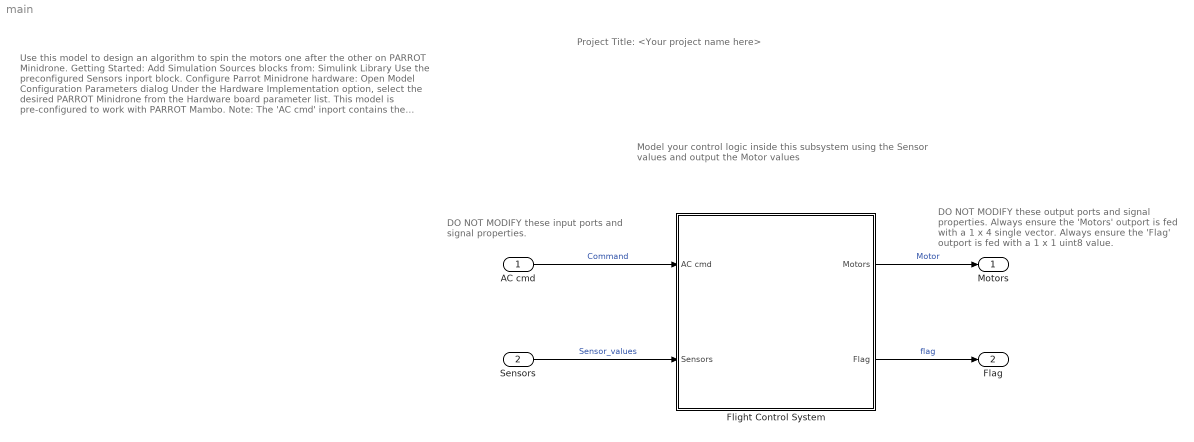
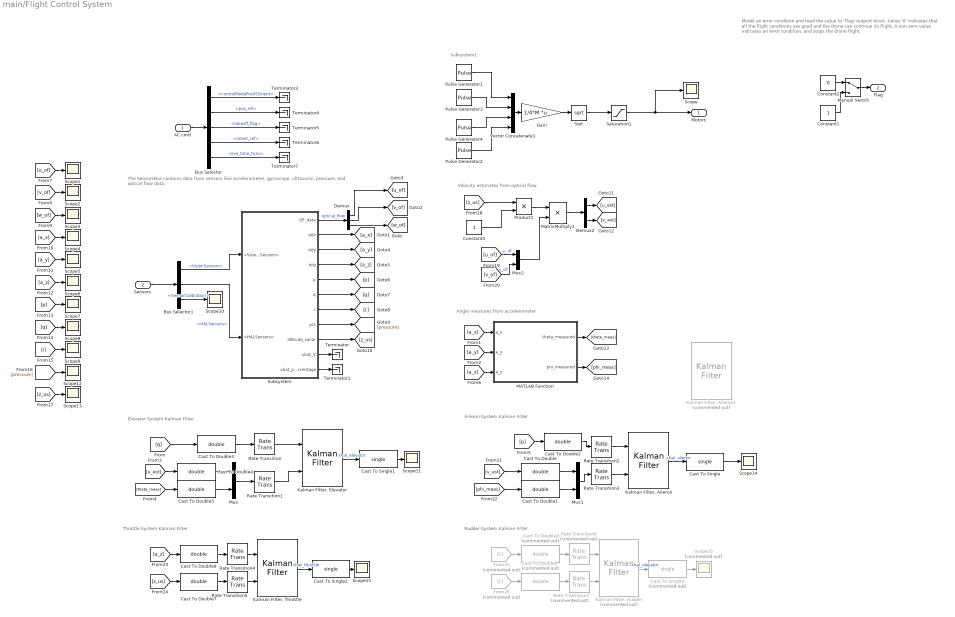
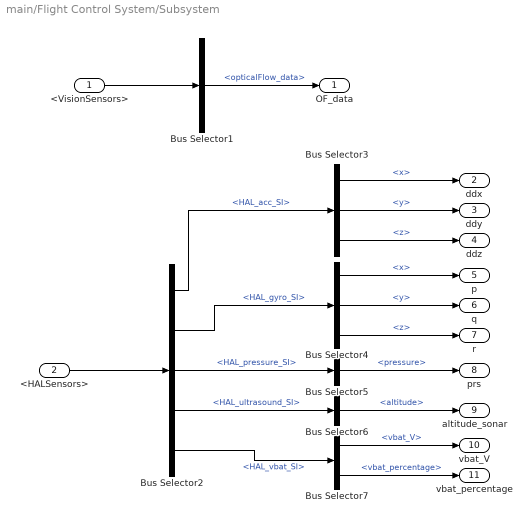
== matlab function main/Flight Control System/MATLAB Function ==
function [theta_measured,phi_measured]= fcn(a_x,a_y,a_z)
theta_measured = -a_x / sqrt(a_y^2 + a_z^2);
phi_measured = a_y/a_z;

/*
 * main.c
 *
 * Academic License - for use in teaching, academic research, and meeting
 * course requirements at degree granting institutions only.  Not for
 * government, commercial, or other organizational use.
 *
 * Code generation for model "main".
 *
 * Model version              : 1.10
 * Simulink Coder version : 9.5 (R2021a) 14-Nov-2020
 * C source code generated on : Wed Dec  1 17:09:56 2021
 *
 * Target selection: ert.tlc
 * Note: GRT includes extra infrastructure and instrumentation for prototyping
 * Embedded hardware selection: ARM Compatible->ARM 9
 * Code generation objectives: Unspecified
 * Validation result: Not run
 */

#include "main.h"
#include "main_private.h"

/* Exported block signals */
CommandBus cmd_inport;                 /* '<Root>/AC cmd' */
SensorsBus sensor_inport;              /* '<Root>/Sensors' */
real32_T motors_outport[4];            /* '<S1>/Saturation1' */
uint8_T flag_outport;                  /* '<S1>/Manual Switch' */

/* Block signals (default storage) */
B_main_T main_B;

/* Block states (default storage) */
DW_main_T main_DW;

/* External outputs (root outports fed by signals with default storage) */
ExtY_main_T main_Y;

/* Real-time model */
static RT_MODEL_main_T main_M_;
RT_MODEL_main_T *const main_M = &main_M_;

/*
 * System initialize for enable system:
 *    '<S27>/MeasurementUpdate'
 *    '<S81>/MeasurementUpdate'
 */
void main_MeasurementUpdate_Init(B_MeasurementUpdate_main_T *localB,
  P_MeasurementUpdate_main_T *localP)
{
  /* SystemInitialize for Product: '<S58>/Product3' incorporates:
   *  Outport: '<S58>/L*(y[k]-yhat[k|k-1])'
   */
  localB->Product3[0] = localP->Lykyhatkk1_Y0;
  localB->Product3[1] = localP->Lykyhatkk1_Y0;
}

/*
 * Disable for enable system:
 *    '<S27>/MeasurementUpdate'
 *    '<S81>/MeasurementUpdate'
 */
void main_MeasurementUpdate_Disable(B_MeasurementUpdate_main_T *localB,
  DW_MeasurementUpdate_main_T *localDW, P_MeasurementUpdate_main_T *localP)
{
  /* Disable for Product: '<S58>/Product3' incorporates:
   *  Outport: '<S58>/L*(y[k]-yhat[k|k-1])'
   */
  localB->Product3[0] = localP->Lykyhatkk1_Y0;
  localB->Product3[1] = localP->Lykyhatkk1_Y0;
  localDW->MeasurementUpdate_MODE = false;
}

/*
 * Start for enable system:
 *    '<S27>/MeasurementUpdate'
 *    '<S81>/MeasurementUpdate'
 */
void main_MeasurementUpdate_Start(DW_MeasurementUpdate_main_T *localDW)
{
  localDW->MeasurementUpdate_MODE = false;
}

/*
 * Output and update for enable system:
 *    '<S27>/MeasurementUpdate'
 *    '<S81>/MeasurementUpdate'
 */
void main_MeasurementUpdate(boolean_T rtu_Enable, const real_T rtu_Lk[4], real_T
  rtu_yk, real_T rtu_yk_d, const real_T rtu_Ck[4], const real_T rtu_xhatkk1[2],
  const real_T rtu_Dk[2], real_T rtu_uk, B_MeasurementUpdate_main_T *localB,
  DW_MeasurementUpdate_main_T *localDW, P_MeasurementUpdate_main_T *localP)
{
  real_T rtu_yk_idx_0;
  real_T rtu_yk_idx_1;

  /* Outputs for Enabled SubSystem: '<S27>/MeasurementUpdate' incorporates:
   *  EnablePort: '<S58>/Enable'
   */
  if (rtu_Enable) {
    localDW->MeasurementUpdate_MODE = true;

    /* Sum: '<S58>/Sum' incorporates:
     *  Product: '<S58>/C[k]*xhat[k|k-1]'
     *  Product: '<S58>/D[k]*u[k]'
     *  Sum: '<S58>/Add1'
     */
    rtu_yk_idx_0 = rtu_yk - ((rtu_Ck[0] * rtu_xhatkk1[0] + rtu_xhatkk1[1] *
      rtu_Ck[2]) + rtu_Dk[0] * rtu_uk);
    rtu_yk_idx_1 = rtu_yk_d - ((rtu_xhatkk1[0] * rtu_Ck[1] + rtu_xhatkk1[1] *
      rtu_Ck[3]) + rtu_Dk[1] * rtu_uk);

    /* Product: '<S58>/Product3' */
    localB->Product3[0] = 0.0;
    localB->Product3[0] += rtu_Lk[0] * rtu_yk_idx_0;
    localB->Product3[0] += rtu_Lk[2] * rtu_yk_idx_1;
    localB->Product3[1] = 0.0;
    localB->Product3[1] += rtu_Lk[1] * rtu_yk_idx_0;
    localB->Product3[1] += rtu_Lk[3] * rtu_yk_idx_1;
  } else if (localDW->MeasurementUpdate_MODE) {
    main_MeasurementUpdate_Disable(localB, localDW, localP);
  }

  /* End of Outputs for SubSystem: '<S27>/MeasurementUpdate' */
}

/*
 * System initialize for enable system:
 *    '<S34>/Enabled Subsystem'
 *    '<S88>/Enabled Subsystem'
 */
void main_EnabledSubsystem_Init(B_EnabledSubsystem_main_T *localB,
  P_EnabledSubsystem_main_T *localP)
{
  /* SystemInitialize for Product: '<S60>/Product2' incorporates:
   *  Outport: '<S60>/deltax'
   */
  localB->Product2[0] = localP->deltax_Y0;
  localB->Product2[1] = localP->deltax_Y0;
}

/*
 * Disable for enable system:
 *    '<S34>/Enabled Subsystem'
 *    '<S88>/Enabled Subsystem'
 */
void main_EnabledSubsystem_Disable(B_EnabledSubsystem_main_T *localB,
  DW_EnabledSubsystem_main_T *localDW, P_EnabledSubsystem_main_T *localP)
{
  /* Disable for Product: '<S60>/Product2' incorporates:
   *  Outport: '<S60>/deltax'
   */
  localB->Product2[0] = localP->deltax_Y0;
  localB->Product2[1] = localP->deltax_Y0;
  localDW->EnabledSubsystem_MODE = false;
}

/*
 * Start for enable system:
 *    '<S34>/Enabled Subsystem'
 *    '<S88>/Enabled Subsystem'
 */
void main_EnabledSubsystem_Start(DW_EnabledSubsystem_main_T *localDW)
{
  localDW->EnabledSubsystem_MODE = false;
}

/*
 * Output and update for enable system:
 *    '<S34>/Enabled Subsystem'
 *    '<S88>/Enabled Subsystem'
 */
void main_EnabledSubsystem(boolean_T rtu_Enable, const real_T rtu_Mk[4], const
  real_T rtu_Ck[4], real_T rtu_yk, real_T rtu_yk_b, const real_T rtu_xhatkk1[2],
  B_EnabledSubsystem_main_T *localB, DW_EnabledSubsystem_main_T *localDW,
  P_EnabledSubsystem_main_T *localP)
{
  real_T rtu_yk_idx_0;
  real_T rtu_yk_idx_1;

  /* Outputs for Enabled SubSystem: '<S34>/Enabled Subsystem' incorporates:
   *  EnablePort: '<S60>/Enable'
   */
  if (rtu_Enable) {
    localDW->EnabledSubsystem_MODE = true;

    /* Sum: '<S60>/Add1' incorporates:
     *  Product: '<S60>/Product'
     */
    rtu_yk_idx_0 = rtu_yk - (rtu_Ck[0] * rtu_xhatkk1[0] + rtu_xhatkk1[1] *
      rtu_Ck[2]);
    rtu_yk_idx_1 = rtu_yk_b - (rtu_xhatkk1[0] * rtu_Ck[1] + rtu_xhatkk1[1] *
      rtu_Ck[3]);

    /* Product: '<S60>/Product2' */
    localB->Product2[0] = 0.0;
    localB->Product2[0] += rtu_Mk[0] * rtu_yk_idx_0;
    localB->Product2[0] += rtu_Mk[2] * rtu_yk_idx_1;
    localB->Product2[1] = 0.0;
    localB->Product2[1] += rtu_Mk[1] * rtu_yk_idx_0;
    localB->Product2[1] += rtu_Mk[3] * rtu_yk_idx_1;
  } else if (localDW->EnabledSubsystem_MODE) {
    main_EnabledSubsystem_Disable(localB, localDW, localP);
  }

  /* End of Outputs for SubSystem: '<S34>/Enabled Subsystem' */
}

/* Model step function */
void main_step(void)
{
  real_T rtb_VectorConcatenate1_idx_3;
  real_T u0;
  int32_T i;
  real32_T rtb_altitude;
  real32_T rtb_phi_measured;
  real32_T rtb_theta_measured;
  real32_T rtb_x;
  real32_T rtb_y;
  real32_T rtb_y_o;
  real32_T rtb_z;

  /* SignalConversion generated from: '<S1>/Bus Selector1' incorporates:
   *  Inport: '<Root>/Sensors'
   */
  for (i = 0; i < 8; i++) {
    main_B.SensorCalibration[i] = sensor_inport.SensorCalibration[i];
  }

  /* End of SignalConversion generated from: '<S1>/Bus Selector1' */

  /* Scope: '<S1>/Scope10' */
  {
    StructLogVar *svar = (StructLogVar *)main_DW.Scope10_PWORK.LoggedData;
    LogVar *var = svar->signals.values;

    /* time */
    {
      double locTime = main_M->Timing.taskTime0;
      ;
      rt_UpdateLogVar((LogVar *)svar->time, &locTime, 0);
    }

    /* signals */
    {
      real32_T up0[8];
      (void) memcpy(&up0[0], &main_B.SensorCalibration[0],
                    8*sizeof(real32_T));
      rt_UpdateLogVar((LogVar *)var, up0, 0);
    }
  }

  /* DiscretePulseGenerator: '<S1>/Pulse Generator1' */
  main_B.rtb_VectorConcatenate1_idx_0 = (main_DW.clockTickCounter <
    main_P.PulseGenerator1_Duty) && (main_DW.clockTickCounter >= 0) ? main_P.W[0]
    : 0.0;
  if (main_DW.clockTickCounter >= main_P.PulseGenerator1_Period - 1.0) {
    main_DW.clockTickCounter = 0;
  } else {
    main_DW.clockTickCounter++;
  }

  /* End of DiscretePulseGenerator: '<S1>/Pulse Generator1' */

  /* DiscretePulseGenerator: '<S1>/Pulse Generator3' */
  main_B.rtb_VectorConcatenate1_idx_1 = (main_DW.clockTickCounter_h <
    main_P.PulseGenerator3_Duty) && (main_DW.clockTickCounter_h >= 0) ?
    main_P.W[1] : 0.0;
  if (main_DW.clockTickCounter_h >= main_P.PulseGenerator3_Period - 1.0) {
    main_DW.clockTickCounter_h = 0;
  } else {
    main_DW.clockTickCounter_h++;
  }

  /* End of DiscretePulseGenerator: '<S1>/Pulse Generator3' */

  /* DiscretePulseGenerator: '<S1>/Pulse Generator4' */
  main_B.rtb_VectorConcatenate1_idx_2 = (main_DW.clockTickCounter_a <
    main_P.PulseGenerator4_Duty) && (main_DW.clockTickCounter_a >= 0) ?
    main_P.W[2] : 0.0;
  if (main_DW.clockTickCounter_a >= main_P.PulseGenerator4_Period - 1.0) {
    main_DW.clockTickCounter_a = 0;
  } else {
    main_DW.clockTickCounter_a++;
  }

  /* End of DiscretePulseGenerator: '<S1>/Pulse Generator4' */

  /* DiscretePulseGenerator: '<S1>/Pulse Generator2' */
  rtb_VectorConcatenate1_idx_3 = (main_DW.clockTickCounter_n <
    main_P.PulseGenerator2_Duty) && (main_DW.clockTickCounter_n >= 0) ?
    main_P.W[3] : 0.0;
  if (main_DW.clockTickCounter_n >= main_P.PulseGenerator2_Period - 1.0) {
    main_DW.clockTickCounter_n = 0;
  } else {
    main_DW.clockTickCounter_n++;
  }

  /* End of DiscretePulseGenerator: '<S1>/Pulse Generator2' */
  for (i = 0; i < 4; i++) {
    /* Sqrt: '<S1>/Sqrt' incorporates:
     *  Gain: '<S1>/Gain'
     */
    u0 = sqrt(main_P.M[i + 12] * 0.25 * rtb_VectorConcatenate1_idx_3 +
              (main_P.M[i + 8] * 0.25 * main_B.rtb_VectorConcatenate1_idx_2 +
               (main_P.M[i + 4] * 0.25 * main_B.rtb_VectorConcatenate1_idx_1 +
                0.25 * main_P.M[i] * main_B.rtb_VectorConcatenate1_idx_0)));

    /* Saturate: '<S1>/Saturation1' */
    if (u0 > main_P.Saturation1_UpperSat) {
      /* Saturate: '<S1>/Saturation1' incorporates:
       *  Sqrt: '<S1>/Sqrt'
       */
      motors_outport[i] = main_P.Saturation1_UpperSat;
    } else if (u0 < main_P.Saturation1_LowerSat) {
      /* Saturate: '<S1>/Saturation1' incorporates:
       *  Sqrt: '<S1>/Sqrt'
       */
      motors_outport[i] = main_P.Saturation1_LowerSat;
    } else {
      /* Saturate: '<S1>/Saturation1' incorporates:
       *  Sqrt: '<S1>/Sqrt'
       */
      motors_outport[i] = (real32_T)u0;
    }

    /* End of Saturate: '<S1>/Saturation1' */

    /* Outport: '<Root>/Motors' incorporates:
     *  Saturate: '<S1>/Saturation1'
     */
    main_Y.Motors[i] = motors_outport[i];
  }

  /* Scope: '<S1>/Scope' */
  {
    StructLogVar *svar = (StructLogVar *)main_DW.Scope_PWORK.LoggedData;
    LogVar *var = svar->signals.values;

    /* time */
    {
      double locTime = main_M->Timing.taskTime0;
      ;
      rt_UpdateLogVar((LogVar *)svar->time, &locTime, 0);
    }

    /* signals */
    {
      real32_T up0[4];
      up0[0] = motors_outport[0];
      up0[1] = motors_outport[1];
      up0[2] = motors_outport[2];
      up0[3] = motors_outport[3];
      rt_UpdateLogVar((LogVar *)var, up0, 0);
    }
  }

  /* SignalConversion generated from: '<S6>/Bus Selector1' incorporates:
   *  Inport: '<Root>/Sensors'
   */
  main_B.opticalFlow_data[0] = sensor_inport.VisionSensors.opticalFlow_data[0];
  main_B.opticalFlow_data[1] = sensor_inport.VisionSensors.opticalFlow_data[1];
  main_B.opticalFlow_data[2] = sensor_inport.VisionSensors.opticalFlow_data[2];

  /* Scope: '<S1>/Scope1' */
  {
    StructLogVar *svar = (StructLogVar *)main_DW.Scope1_PWORK.LoggedData;
    LogVar *var = svar->signals.values;

    /* time */
    {
      double locTime = main_M->Timing.taskTime0;
      ;
      rt_UpdateLogVar((LogVar *)svar->time, &locTime, 0);
    }

    /* signals */
    {
      real32_T up0[1];
      up0[0] = main_B.opticalFlow_data[0];
      rt_UpdateLogVar((LogVar *)var, up0, 0);
    }
  }

  /* Scope: '<S1>/Scope2' */
  {
    StructLogVar *svar = (StructLogVar *)main_DW.Scope2_PWORK.LoggedData;
    LogVar *var = svar->signals.values;

    /* time */
    {
      double locTime = main_M->Timing.taskTime0;
      ;
      rt_UpdateLogVar((LogVar *)svar->time, &locTime, 0);
    }

    /* signals */
    {
      real32_T up0[1];
      up0[0] = main_B.opticalFlow_data[1];
      rt_UpdateLogVar((LogVar *)var, up0, 0);
    }
  }

  /* Scope: '<S1>/Scope3' */
  {
    StructLogVar *svar = (StructLogVar *)main_DW.Scope3_PWORK.LoggedData;
    LogVar *var = svar->signals.values;

    /* time */
    {
      double locTime = main_M->Timing.taskTime0;
      ;
      rt_UpdateLogVar((LogVar *)svar->time, &locTime, 0);
    }

    /* signals */
    {
      real32_T up0[1];
      up0[0] = main_B.opticalFlow_data[2];
      rt_UpdateLogVar((LogVar *)var, up0, 0);
    }
  }

  /* SignalConversion generated from: '<S6>/Bus Selector6' incorporates:
   *  Inport: '<Root>/Sensors'
   */
  rtb_altitude = sensor_inport.HALSensors.HAL_ultrasound_SI.altitude;

  /* Product: '<S1>/Product1' incorporates:
   *  Constant: '<S1>/Constant3'
   */
  main_B.rtb_VectorConcatenate1_idx_1 = rtb_altitude * main_P.Constant3_Value;

  /* Product: '<S1>/MatrixMultiply1' */
  main_B.rtb_VectorConcatenate1_idx_0 = main_B.rtb_VectorConcatenate1_idx_1 *
    main_B.opticalFlow_data[0];
  main_B.rtb_VectorConcatenate1_idx_1 *= main_B.opticalFlow_data[1];

  /* SignalConversion generated from: '<S6>/Bus Selector3' incorporates:
   *  Inport: '<Root>/Sensors'
   */
  rtb_x = sensor_inport.HALSensors.HAL_acc_SI.x;

  /* SignalConversion generated from: '<S6>/Bus Selector3' incorporates:
   *  Inport: '<Root>/Sensors'
   */
  rtb_y = sensor_inport.HALSensors.HAL_acc_SI.y;

  /* SignalConversion generated from: '<S6>/Bus Selector3' incorporates:
   *  Inport: '<Root>/Sensors'
   */
  rtb_z = sensor_inport.HALSensors.HAL_acc_SI.z;

  /* MATLAB Function: '<S1>/MATLAB Function' */
  rtb_theta_measured = -rtb_x / (real32_T)sqrt(rtb_y * rtb_y + rtb_z * rtb_z);
  rtb_phi_measured = rtb_y / rtb_z;

  /* Delay: '<S3>/MemoryX' incorporates:
   *  Constant: '<S3>/X0'
   */
  if (main_DW.icLoad) {
    main_DW.MemoryX_DSTATE[0] = main_P.X0_Value[0];
    main_DW.MemoryX_DSTATE[1] = main_P.X0_Value[1];
  }

  /* Outputs for Enabled SubSystem: '<S88>/Enabled Subsystem' */
  /* Constant: '<S3>/Enable' incorporates:
   *  Constant: '<S3>/C'
   *  Constant: '<S61>/KalmanGainM'
   *  DataTypeConversion: '<S1>/Cast To Double5'
   */
  main_EnabledSubsystem(main_P.Enable_Value, main_P.KalmanGainM_Value,
                        main_P.C_Value, main_B.rtb_VectorConcatenate1_idx_0,
                        (real_T)rtb_theta_measured, main_DW.MemoryX_DSTATE,
                        &main_B.EnabledSubsystem_p, &main_DW.EnabledSubsystem_p,
                        &main_P.EnabledSubsystem_p);

  /* End of Outputs for SubSystem: '<S88>/Enabled Subsystem' */

  /* DataTypeConversion: '<S1>/Cast To Single1' incorporates:
   *  Delay: '<S3>/MemoryX'
   *  Sum: '<S88>/Add'
   */
  main_B.CastToSingle2[0] = (real32_T)(main_B.EnabledSubsystem_p.Product2[0] +
    main_DW.MemoryX_DSTATE[0]);
  main_B.CastToSingle2[1] = (real32_T)(main_B.EnabledSubsystem_p.Product2[1] +
    main_DW.MemoryX_DSTATE[1]);

  /* Scope: '<S1>/Scope11' */
  {
    StructLogVar *svar = (StructLogVar *)main_DW.Scope11_PWORK.LoggedData;
    LogVar *var = svar->signals.values;

    /* time */
    {
      double locTime = main_M->Timing.taskTime0;
      ;
      rt_UpdateLogVar((LogVar *)svar->time, &locTime, 0);
    }

    /* signals */
    {
      real32_T up0[2];
      up0[0] = main_B.CastToSingle2[0];
      up0[1] = main_B.CastToSingle2[1];
      rt_UpdateLogVar((LogVar *)var, up0, 0);
    }
  }

  /* SignalConversion generated from: '<S6>/Bus Selector4' incorporates:
   *  Inport: '<Root>/Sensors'
   */
  rtb_y_o = sensor_inport.HALSensors.HAL_gyro_SI.y;

  /* Outputs for Enabled SubSystem: '<S81>/MeasurementUpdate' */
  /* Constant: '<S3>/Enable' incorporates:
   *  Constant: '<S3>/C'
   *  Constant: '<S3>/D'
   *  Constant: '<S61>/KalmanGainL'
   *  DataTypeConversion: '<S1>/Cast To Double3'
   *  DataTypeConversion: '<S1>/Cast To Double5'
   */
  main_MeasurementUpdate(main_P.Enable_Value, main_P.KalmanGainL_Value_a,
    main_B.rtb_VectorConcatenate1_idx_0, (real_T)rtb_theta_measured,
    main_P.C_Value, main_DW.MemoryX_DSTATE, main_P.D_Value, (real_T)rtb_y_o,
    &main_B.MeasurementUpdate_h, &main_DW.MeasurementUpdate_h,
    &main_P.MeasurementUpdate_h);

  /* End of Outputs for SubSystem: '<S81>/MeasurementUpdate' */

  /* Delay: '<S2>/MemoryX' incorporates:
   *  Constant: '<S2>/X0'
   */
  if (main_DW.icLoad_g) {
    main_DW.MemoryX_DSTATE_n[0] = main_P.X0_Value_g[0];
    main_DW.MemoryX_DSTATE_n[1] = main_P.X0_Value_g[1];
  }

  /* Outputs for Enabled SubSystem: '<S34>/Enabled Subsystem' */
  /* Constant: '<S2>/Enable' incorporates:
   *  Constant: '<S2>/C'
   *  Constant: '<S7>/KalmanGainM'
   *  DataTypeConversion: '<S1>/Cast To Double1'
   */
  main_EnabledSubsystem(main_P.Enable_Value_n, main_P.KalmanGainM_Value_p,
                        main_P.C_Value_g, main_B.rtb_VectorConcatenate1_idx_1,
                        (real_T)rtb_phi_measured, main_DW.MemoryX_DSTATE_n,
                        &main_B.EnabledSubsystem, &main_DW.EnabledSubsystem,
                        &main_P.EnabledSubsystem);

  /* End of Outputs for SubSystem: '<S34>/Enabled Subsystem' */

  /* DataTypeConversion: '<S1>/Cast To Single' incorporates:
   *  Delay: '<S2>/MemoryX'
   *  Sum: '<S34>/Add'
   */
  main_B.CastToSingle2[0] = (real32_T)(main_B.EnabledSubsystem.Product2[0] +
    main_DW.MemoryX_DSTATE_n[0]);
  main_B.CastToSingle2[1] = (real32_T)(main_B.EnabledSubsystem.Product2[1] +
    main_DW.MemoryX_DSTATE_n[1]);

  /* Scope: '<S1>/Scope14' */
  {
    StructLogVar *svar = (StructLogVar *)main_DW.Scope14_PWORK.LoggedData;
    LogVar *var = svar->signals.values;

    /* time */
    {
      double locTime = main_M->Timing.taskTime0;
      ;
      rt_UpdateLogVar((LogVar *)svar->time, &locTime, 0);
    }

    /* signals */
    {
      real32_T up0[2];
      up0[0] = main_B.CastToSingle2[0];
      up0[1] = main_B.CastToSingle2[1];
      rt_UpdateLogVar((LogVar *)var, up0, 0);
    }
  }

  /* SignalConversion generated from: '<S6>/Bus Selector4' incorporates:
   *  Inport: '<Root>/Sensors'
   */
  rtb_theta_measured = sensor_inport.HALSensors.HAL_gyro_SI.x;

  /* DataTypeConversion: '<S1>/Cast To Double2' */
  main_B.rtb_VectorConcatenate1_idx_0 = rtb_theta_measured;

  /* Outputs for Enabled SubSystem: '<S27>/MeasurementUpdate' */
  /* Constant: '<S2>/Enable' incorporates:
   *  Constant: '<S2>/C'
   *  Constant: '<S2>/D'
   *  Constant: '<S7>/KalmanGainL'
   *  DataTypeConversion: '<S1>/Cast To Double1'
   *  DataTypeConversion: '<S1>/Cast To Double2'
   */
  main_MeasurementUpdate(main_P.Enable_Value_n, main_P.KalmanGainL_Value,
    main_B.rtb_VectorConcatenate1_idx_1, (real_T)rtb_phi_measured,
    main_P.C_Value_g, main_DW.MemoryX_DSTATE_n, main_P.D_Value_o, (real_T)
    rtb_theta_measured, &main_B.MeasurementUpdate, &main_DW.MeasurementUpdate,
    &main_P.MeasurementUpdate);

  /* End of Outputs for SubSystem: '<S27>/MeasurementUpdate' */

  /* Delay: '<S4>/MemoryX' incorporates:
   *  Constant: '<S4>/X0'
   */
  if (main_DW.icLoad_b) {
    main_DW.MemoryX_DSTATE_j[0] = main_P.X0_Value_m[0];
    main_DW.MemoryX_DSTATE_j[1] = main_P.X0_Value_m[1];
  }

  /* Outputs for Enabled SubSystem: '<S142>/Enabled Subsystem' incorporates:
   *  EnablePort: '<S168>/Enable'
   */
  /* Outputs for Enabled SubSystem: '<S135>/MeasurementUpdate' incorporates:
   *  EnablePort: '<S166>/Enable'
   */
  /* Constant: '<S4>/Enable' */
  if (main_P.Enable_Value_p) {
    main_DW.MeasurementUpdate_MODE = true;

    /* Product: '<S166>/C[k]*xhat[k|k-1]' incorporates:
     *  Constant: '<S4>/C'
     *  Delay: '<S4>/MemoryX'
     *  Product: '<S168>/Product'
     */
    main_B.rtb_VectorConcatenate1_idx_1 = main_P.C_Value_j[0] *
      main_DW.MemoryX_DSTATE_j[0] + main_P.C_Value_j[1] *
      main_DW.MemoryX_DSTATE_j[1];

    /* Sum: '<S166>/Sum' incorporates:
     *  Constant: '<S4>/D'
     *  DataTypeConversion: '<S1>/Cast To Double6'
     *  DataTypeConversion: '<S1>/Cast To Double7'
     *  Product: '<S166>/C[k]*xhat[k|k-1]'
     *  Product: '<S166>/D[k]*u[k]'
     *  Sum: '<S166>/Add1'
     */
    main_B.rtb_VectorConcatenate1_idx_2 = rtb_altitude -
      (main_B.rtb_VectorConcatenate1_idx_1 + main_P.D_Value_n * rtb_z);
    main_DW.EnabledSubsystem_MODE = true;

    /* Product: '<S166>/Product3' incorporates:
     *  Constant: '<S115>/KalmanGainL'
     */
    main_B.Product3[0] = main_P.KalmanGainL_Value_h[0] *
      main_B.rtb_VectorConcatenate1_idx_2;
    main_B.Product3[1] = main_P.KalmanGainL_Value_h[1] *
      main_B.rtb_VectorConcatenate1_idx_2;

    /* Sum: '<S168>/Add1' incorporates:
     *  DataTypeConversion: '<S1>/Cast To Double7'
     */
    main_B.rtb_VectorConcatenate1_idx_1 = rtb_altitude -
      main_B.rtb_VectorConcatenate1_idx_1;

    /* Product: '<S168>/Product2' incorporates:
     *  Constant: '<S115>/KalmanGainM'
     */
    main_B.Product2[0] = main_P.KalmanGainM_Value_b[0] *
      main_B.rtb_VectorConcatenate1_idx_1;
    main_B.Product2[1] = main_P.KalmanGainM_Value_b[1] *
      main_B.rtb_VectorConcatenate1_idx_1;
  } else {
    if (main_DW.MeasurementUpdate_MODE) {
      /* Disable for Product: '<S166>/Product3' incorporates:
       *  Outport: '<S166>/L*(y[k]-yhat[k|k-1])'
       */
      main_B.Product3[0] = main_P.Lykyhatkk1_Y0;
      main_B.Product3[1] = main_P.Lykyhatkk1_Y0;
      main_DW.MeasurementUpdate_MODE = false;
    }

    if (main_DW.EnabledSubsystem_MODE) {
      /* Disable for Product: '<S168>/Product2' incorporates:
       *  Outport: '<S168>/deltax'
       */
      main_B.Product2[0] = main_P.deltax_Y0;
      main_B.Product2[1] = main_P.deltax_Y0;
      main_DW.EnabledSubsystem_MODE = false;
    }
  }

  /* End of Constant: '<S4>/Enable' */
  /* End of Outputs for SubSystem: '<S135>/MeasurementUpdate' */
  /* End of Outputs for SubSystem: '<S142>/Enabled Subsystem' */

  /* DataTypeConversion: '<S1>/Cast To Single2' incorporates:
   *  Delay: '<S4>/MemoryX'
   *  Sum: '<S142>/Add'
   */
  main_B.CastToSingle2[0] = (real32_T)(main_B.Product2[0] +
    main_DW.MemoryX_DSTATE_j[0]);
  main_B.CastToSingle2[1] = (real32_T)(main_B.Product2[1] +
    main_DW.MemoryX_DSTATE_j[1]);

  /* Scope: '<S1>/Scope15' */
  {
    StructLogVar *svar = (StructLogVar *)main_DW.Scope15_PWORK.LoggedData;
    LogVar *var = svar->signals.values;

    /* time */
    {
      double locTime = main_M->Timing.taskTime0;
      ;
      rt_UpdateLogVar((LogVar *)svar->time, &locTime, 0);
    }

    /* signals */
    {
      real32_T up0[2];
      up0[0] = main_B.CastToSingle2[0];
      up0[1] = main_B.CastToSingle2[1];
      rt_UpdateLogVar((LogVar *)var, up0, 0);
    }
  }

  /* Scope: '<S1>/Scope7' */
  {
    StructLogVar *svar = (StructLogVar *)main_DW.Scope7_PWORK.LoggedData;
    LogVar *var = svar->signals.values;

    /* time */
    {
      double locTime = main_M->Timing.taskTime0;
      ;
      rt_UpdateLogVar((LogVar *)svar->time, &locTime, 0);
    }

    /* signals */
    {
      real32_T up0[1];
      up0[0] = rtb_theta_measured;
      rt_UpdateLogVar((LogVar *)var, up0, 0);
    }
  }

  /* Scope: '<S1>/Scope8' */
  {
    StructLogVar *svar = (StructLogVar *)main_DW.Scope8_PWORK.LoggedData;
    LogVar *var = svar->signals.values;

    /* time */
    {
      double locTime = main_M->Timing.taskTime0;
      ;
      rt_UpdateLogVar((LogVar *)svar->time, &locTime, 0);
    }

    /* signals */
    {
      real32_T up0[1];
      up0[0] = rtb_y_o;
      rt_UpdateLogVar((LogVar *)var, up0, 0);
    }
  }

  /* Scope: '<S1>/Scope6' */
  {
    StructLogVar *svar = (StructLogVar *)main_DW.Scope6_PWORK.LoggedData;
    LogVar *var = svar->signals.values;

    /* time */
    {
      double locTime = main_M->Timing.taskTime0;
      ;
      rt_UpdateLogVar((LogVar *)svar->time, &locTime, 0);
    }

    /* signals */
    {
      real32_T up0[1];
      up0[0] = rtb_z;
      rt_UpdateLogVar((LogVar *)var, up0, 0);
    }
  }

  /* Scope: '<S1>/Scope5' */
  {
    StructLogVar *svar = (StructLogVar *)main_DW.Scope5_PWORK.LoggedData;
    LogVar *var = svar->signals.values;

    /* time */
    {
      double locTime = main_M->Timing.taskTime0;
      ;
      rt_UpdateLogVar((LogVar *)svar->time, &locTime, 0);
    }

    /* signals */
    {
      real32_T up0[1];
      up0[0] = rtb_y;
      rt_UpdateLogVar((LogVar *)var, up0, 0);
    }
  }

  /* Scope: '<S1>/Scope4' */
  {
    StructLogVar *svar = (StructLogVar *)main_DW.Scope4_PWORK.LoggedData;
    LogVar *var = svar->signals.values;

    /* time */
    {
      double locTime = main_M->Timing.taskTime0;
      ;
      rt_UpdateLogVar((LogVar *)svar->time, &locTime, 0);
    }

    /* signals */
    {
      real32_T up0[1];
      up0[0] = rtb_x;
      rt_UpdateLogVar((LogVar *)var, up0, 0);
    }
  }

  /* Scope: '<S1>/Scope13' */
  {
    StructLogVar *svar = (StructLogVar *)main_DW.Scope13_PWORK.LoggedData;
    LogVar *var = svar->signals.values;

    /* time */
    {
      double locTime = main_M->Timing.taskTime0;
      ;
      rt_UpdateLogVar((LogVar *)svar->time, &locTime, 0);
    }

    /* signals */
    {
      real32_T up0[1];
      up0[0] = rtb_altitude;
      rt_UpdateLogVar((LogVar *)var, up0, 0);
    }
  }

  /* ManualSwitch: '<S1>/Manual Switch' */
  if (main_P.ManualSwitch_CurrentSetting == 1) {
    /* ManualSwitch: '<S1>/Manual Switch' incorporates:
     *  Constant: '<S1>/Constant2'
     */
    flag_outport = main_P.Constant2_Value;
  } else {
    /* ManualSwitch: '<S1>/Manual Switch' incorporates:
     *  Constant: '<S1>/Constant1'
     */
    flag_outport = main_P.Constant1_Value;
  }

  /* End of ManualSwitch: '<S1>/Manual Switch' */

  /* Outport: '<Root>/Flag' */
  main_Y.Flag = flag_outport;

  /* SignalConversion generated from: '<S6>/Bus Selector5' incorporates:
   *  Inport: '<Root>/Sensors'
   */
  rtb_theta_measured = sensor_inport.HALSensors.HAL_pressure_SI.pressure;

  /* Scope: '<S1>/Scope12' */
  {
    StructLogVar *svar = (StructLogVar *)main_DW.Scope12_PWORK.LoggedData;
    LogVar *var = svar->signals.values;

    /* time */
    {
      double locTime = main_M->Timing.taskTime0;
      ;
      rt_UpdateLogVar((LogVar *)svar->time, &locTime, 0);
    }

    /* signals */
    {
      real32_T up0[1];
      up0[0] = rtb_theta_measured;
      rt_UpdateLogVar((LogVar *)var, up0, 0);
    }
  }

  /* SignalConversion generated from: '<S6>/Bus Selector4' incorporates:
   *  Inport: '<Root>/Sensors'
   */
  rtb_theta_measured = sensor_inport.HALSensors.HAL_gyro_SI.z;

  /* Scope: '<S1>/Scope9' */
  {
    StructLogVar *svar = (StructLogVar *)main_DW.Scope9_PWORK.LoggedData;
    LogVar *var = svar->signals.values;

    /* time */
    {
      double locTime = main_M->Timing.taskTime0;
      ;
      rt_UpdateLogVar((LogVar *)svar->time, &locTime, 0);
    }

    /* signals */
    {
      real32_T up0[1];
      up0[0] = rtb_theta_measured;
      rt_UpdateLogVar((LogVar *)var, up0, 0);
    }
  }

  /* Update for Delay: '<S3>/MemoryX' */
  main_DW.icLoad = false;

  /* Product: '<S81>/A[k]*xhat[k|k-1]' incorporates:
   *  Constant: '<S3>/A'
   *  Delay: '<S3>/MemoryX'
   */
  main_B.rtb_VectorConcatenate1_idx_1 = main_P.A_Value_j[0] *
    main_DW.MemoryX_DSTATE[0] + main_DW.MemoryX_DSTATE[1] * main_P.A_Value_j[2];
  main_B.rtb_VectorConcatenate1_idx_2 = main_DW.MemoryX_DSTATE[0] *
    main_P.A_Value_j[1] + main_DW.MemoryX_DSTATE[1] * main_P.A_Value_j[3];

  /* Update for Delay: '<S3>/MemoryX' incorporates:
   *  Constant: '<S3>/B'
   *  DataTypeConversion: '<S1>/Cast To Double3'
   *  Product: '<S112>/Product3'
   *  Product: '<S81>/B[k]*u[k]'
   *  Sum: '<S81>/Add'
   */
  main_DW.MemoryX_DSTATE[0] = (main_P.B_Value[0] * rtb_y_o +
    main_B.rtb_VectorConcatenate1_idx_1) + main_B.MeasurementUpdate_h.Product3[0];
  main_DW.MemoryX_DSTATE[1] = (main_P.B_Value[1] * rtb_y_o +
    main_B.rtb_VectorConcatenate1_idx_2) + main_B.MeasurementUpdate_h.Product3[1];

  /* Update for Delay: '<S2>/MemoryX' */
  main_DW.icLoad_g = false;

  /* Product: '<S27>/A[k]*xhat[k|k-1]' incorporates:
   *  Constant: '<S2>/A'
   *  Delay: '<S2>/MemoryX'
   */
  main_B.rtb_VectorConcatenate1_idx_1 = main_P.A_Value[0] *
    main_DW.MemoryX_DSTATE_n[0] + main_DW.MemoryX_DSTATE_n[1] * main_P.A_Value[2];
  main_B.rtb_VectorConcatenate1_idx_2 = main_DW.MemoryX_DSTATE_n[0] *
    main_P.A_Value[1] + main_DW.MemoryX_DSTATE_n[1] * main_P.A_Value[3];

  /* Update for Delay: '<S2>/MemoryX' incorporates:
   *  Constant: '<S2>/B'
   *  Product: '<S27>/B[k]*u[k]'
   *  Product: '<S58>/Product3'
   *  Sum: '<S27>/Add'
   */
  main_DW.MemoryX_DSTATE_n[0] = (main_P.B_Value_c[0] *
    main_B.rtb_VectorConcatenate1_idx_0 + main_B.rtb_VectorConcatenate1_idx_1) +
    main_B.MeasurementUpdate.Product3[0];
  main_DW.MemoryX_DSTATE_n[1] = (main_P.B_Value_c[1] *
    main_B.rtb_VectorConcatenate1_idx_0 + main_B.rtb_VectorConcatenate1_idx_2) +
    main_B.MeasurementUpdate.Product3[1];

  /* Update for Delay: '<S4>/MemoryX' */
  main_DW.icLoad_b = false;

  /* Product: '<S135>/A[k]*xhat[k|k-1]' incorporates:
   *  Constant: '<S4>/A'
   *  Delay: '<S4>/MemoryX'
   */
  main_B.rtb_VectorConcatenate1_idx_1 = main_P.A_Value_h[0] *
    main_DW.MemoryX_DSTATE_j[0] + main_DW.MemoryX_DSTATE_j[1] *
    main_P.A_Value_h[2];
  main_B.rtb_VectorConcatenate1_idx_2 = main_DW.MemoryX_DSTATE_j[0] *
    main_P.A_Value_h[1] + main_DW.MemoryX_DSTATE_j[1] * main_P.A_Value_h[3];

  /* Update for Delay: '<S4>/MemoryX' incorporates:
   *  Constant: '<S4>/B'
   *  DataTypeConversion: '<S1>/Cast To Double6'
   *  Product: '<S135>/B[k]*u[k]'
   *  Product: '<S166>/Product3'
   *  Sum: '<S135>/Add'
   */
  main_DW.MemoryX_DSTATE_j[0] = (main_P.B_Value_p[0] * rtb_z +
    main_B.rtb_VectorConcatenate1_idx_1) + main_B.Product3[0];
  main_DW.MemoryX_DSTATE_j[1] = (main_P.B_Value_p[1] * rtb_z +
    main_B.rtb_VectorConcatenate1_idx_2) + main_B.Product3[1];

  /* Matfile logging */
  rt_UpdateTXYLogVars(main_M->rtwLogInfo, (&main_M->Timing.taskTime0));

  /* signal main to stop simulation */
  {                                    /* Sample time: [0.005s, 0.0s] */
    if ((rtmGetTFinal(main_M)!=-1) &&
        !((rtmGetTFinal(main_M)-main_M->Timing.taskTime0) >
          main_M->Timing.taskTime0 * (DBL_EPSILON))) {
      rtmSetErrorStatus(main_M, "Simulation finished");
    }
  }

  /* Update absolute time for base rate */
  /* The "clockTick0" counts the number of times the code of this task has
   * been executed. The absolute time is the multiplication of "clockTick0"
   * and "Timing.stepSize0". Size of "clockTick0" ensures timer will not
   * overflow during the application lifespan selected.
   * Timer of this task consists of two 32 bit unsigned integers.
   * The two integers represent the low bits Timing.clockTick0 and the high bits
   * Timing.clockTickH0. When the low bit overflows to 0, the high bits increment.
   */
  if (!(++main_M->Timing.clockTick0)) {
    ++main_M->Timing.clockTickH0;
  }

  main_M->Timing.taskTime0 = main_M->Timing.clockTick0 *
    main_M->Timing.stepSize0 + main_M->Timing.clockTickH0 *
    main_M->Timing.stepSize0 * 4294967296.0;
}
